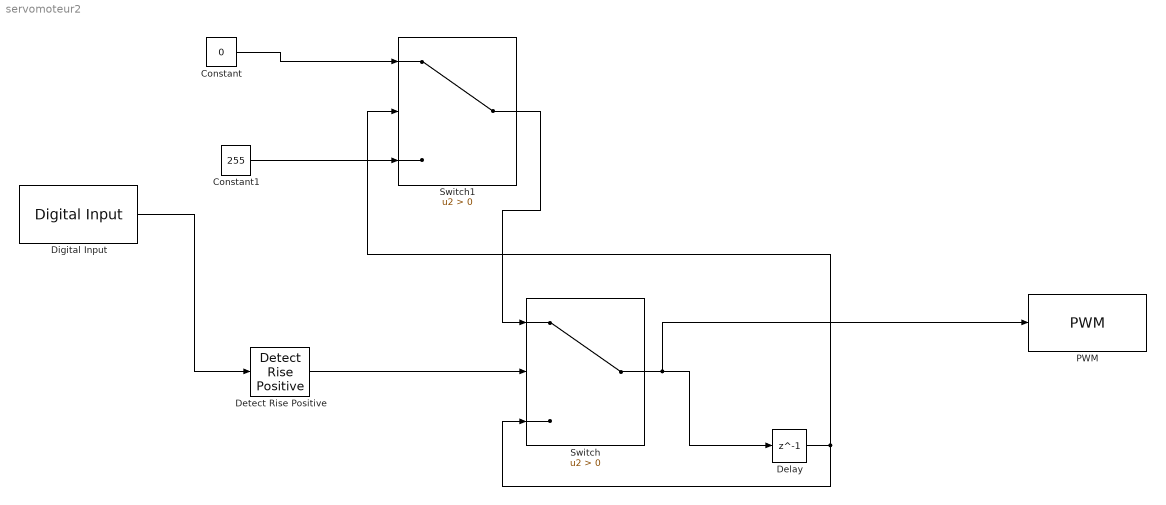
/*
 * File: servomoteur2.c
 *
 * Code generated for Simulink model 'servomoteur2'.
 *
 * Model version                  : 1.3
 * Simulink Coder version         : 9.3 (R2020a) 18-Nov-2019
 * C/C++ source code generated on : Tue Nov  7 11:24:21 2023
 *
 * Target selection: ert.tlc
 * Embedded hardware selection: Atmel->AVR
 * Code generation objectives: Unspecified
 * Validation result: Not run
 */

#include "servomoteur2.h"
#include "servomoteur2_private.h"

/* Block states (default storage) */
DW_servomoteur2_T servomoteur2_DW;

/* Real-time model */
RT_MODEL_servomoteur2_T servomoteur2_M_;
RT_MODEL_servomoteur2_T *const servomoteur2_M = &servomoteur2_M_;

/* Forward declaration for local functions */
static void matlabCodegenHandle_matlabCod_o(codertarget_arduinobase_block_T *obj);
static void servomoteur2_SystemCore_release(codertarget_arduinobase_inter_T *obj);
static void servomoteur2_SystemCore_delete(codertarget_arduinobase_inter_T *obj);
static void matlabCodegenHandle_matlabCodeg(codertarget_arduinobase_inter_T *obj);
static void arduino_PWMOutput_set_pinNumber(codertarget_arduinobase_inter_T *obj,
  j_codertarget_arduinobase_int_T *iobj_0);
static void rate_monotonic_scheduler(void);

/*
 * Set which subrates need to run this base step (base rate always runs).
 * This function must be called prior to calling the model step function
 * in order to "remember" which rates need to run this base step.  The
 * buffering of events allows for overlapping preemption.
 */
void servomoteur2_SetEventsForThisBaseStep(boolean_T *eventFlags)
{
  /* Task runs when its counter is zero, computed via rtmStepTask macro */
  eventFlags[1] = ((boolean_T)rtmStepTask(servomoteur2_M, 1));
}

/*
 *   This function updates active task flag for each subrate
 * and rate transition flags for tasks that exchange data.
 * The function assumes rate-monotonic multitasking scheduler.
 * The function must be called at model base rate so that
 * the generated code self-manages all its subrates and rate
 * transition flags.
 */
static void rate_monotonic_scheduler(void)
{
  /* Compute which subrates run during the next base time step.  Subrates
   * are an integer multiple of the base rate counter.  Therefore, the subtask
   * counter is reset when it reaches its limit (zero means run).
   */
  (servomoteur2_M->Timing.TaskCounters.TID[1])++;
  if ((servomoteur2_M->Timing.TaskCounters.TID[1]) > 9) {/* Sample time: [0.1s, 0.0s] */
    servomoteur2_M->Timing.TaskCounters.TID[1] = 0;
  }
}

static void matlabCodegenHandle_matlabCod_o(codertarget_arduinobase_block_T *obj)
{
  if (!obj->matlabCodegenIsDeleted) {
    obj->matlabCodegenIsDeleted = true;
  }
}

static void servomoteur2_SystemCore_release(codertarget_arduinobase_inter_T *obj)
{
  if ((obj->isInitialized == 1L) && obj->isSetupComplete) {
    obj->MW_PWM_HANDLE = MW_PWM_GetHandle(obj->PinPWM);
    MW_PWM_SetDutyCycle(obj->MW_PWM_HANDLE, 0.0);
    obj->MW_PWM_HANDLE = MW_PWM_GetHandle(obj->PinPWM);
    MW_PWM_Close(obj->MW_PWM_HANDLE);
  }
}

static void servomoteur2_SystemCore_delete(codertarget_arduinobase_inter_T *obj)
{
  servomoteur2_SystemCore_release(obj);
}

static void matlabCodegenHandle_matlabCodeg(codertarget_arduinobase_inter_T *obj)
{
  if (!obj->matlabCodegenIsDeleted) {
    obj->matlabCodegenIsDeleted = true;
    servomoteur2_SystemCore_delete(obj);
  }
}

static void arduino_PWMOutput_set_pinNumber(codertarget_arduinobase_inter_T *obj,
  j_codertarget_arduinobase_int_T *iobj_0)
{
  iobj_0->AvailablePwmPinNames.f1 = '2';
  iobj_0->AvailablePwmPinNames.f2 = '3';
  iobj_0->AvailablePwmPinNames.f3 = '4';
  iobj_0->AvailablePwmPinNames.f4 = '5';
  iobj_0->AvailablePwmPinNames.f5 = '6';
  iobj_0->AvailablePwmPinNames.f6 = '7';
  iobj_0->AvailablePwmPinNames.f7 = '8';
  iobj_0->AvailablePwmPinNames.f8 = '9';
  iobj_0->AvailablePwmPinNames.f9[0] = '1';
  iobj_0->AvailablePwmPinNames.f9[1] = '0';
  iobj_0->AvailablePwmPinNames.f10[0] = '1';
  iobj_0->AvailablePwmPinNames.f10[1] = '1';
  iobj_0->AvailablePwmPinNames.f11[0] = '1';
  iobj_0->AvailablePwmPinNames.f11[1] = '2';
  iobj_0->AvailablePwmPinNames.f12[0] = '1';
  iobj_0->AvailablePwmPinNames.f12[1] = '3';
  obj->Hw = iobj_0;
  obj->PinPWM = 5UL;
}

/* Model step function for TID0 */
void servomoteur2_step0(void)          /* Sample time: [0.01s, 0.0s] */
{
  {                                    /* Sample time: [0.01s, 0.0s] */
    rate_monotonic_scheduler();
  }
}

/* Model step function for TID1 */
void servomoteur2_step1(void)          /* Sample time: [0.1s, 0.0s] */
{
  codertarget_arduinobase_inter_T *obj;
  boolean_T rtb_Compare;
  real_T y;

  /* MATLABSystem: '<Root>/Digital Input' */
  if (servomoteur2_DW.obj_l.SampleTime != servomoteur2_P.DigitalInput_SampleTime)
  {
    servomoteur2_DW.obj_l.SampleTime = servomoteur2_P.DigitalInput_SampleTime;
  }

  rtb_Compare = readDigitalPin(4);

  /* RelationalOperator: '<S2>/Compare' incorporates:
   *  Constant: '<S2>/Constant'
   *  MATLABSystem: '<Root>/Digital Input'
   */
  rtb_Compare = ((int16_T)rtb_Compare > (int16_T)servomoteur2_P.Constant_Value_m);

  /* Switch: '<Root>/Switch' incorporates:
   *  RelationalOperator: '<S1>/FixPt Relational Operator'
   *  UnitDelay: '<S1>/Delay Input1'
   *
   * Block description for '<S1>/Delay Input1':
   *
   *  Store in Global RAM
   */
  if ((int16_T)rtb_Compare > (int16_T)servomoteur2_DW.DelayInput1_DSTATE) {
    /* Switch: '<Root>/Switch1' incorporates:
     *  Constant: '<Root>/Constant'
     *  Constant: '<Root>/Constant1'
     *  Delay: '<Root>/Delay'
     */
    if (servomoteur2_DW.Delay_DSTATE > servomoteur2_P.Switch1_Threshold) {
      servomoteur2_DW.Delay_DSTATE = servomoteur2_P.Constant_Value;
    } else {
      servomoteur2_DW.Delay_DSTATE = servomoteur2_P.Constant1_Value;
    }

    /* End of Switch: '<Root>/Switch1' */
  }

  /* End of Switch: '<Root>/Switch' */

  /* MATLABSystem: '<Root>/PWM' incorporates:
   *  Delay: '<Root>/Delay'
   */
  obj = &servomoteur2_DW.obj;
  obj->MW_PWM_HANDLE = MW_PWM_GetHandle(servomoteur2_DW.obj.PinPWM);
  if (servomoteur2_DW.Delay_DSTATE < 255.0) {
    y = servomoteur2_DW.Delay_DSTATE;
  } else {
    y = 255.0;
  }

  if (!(y > 0.0)) {
    y = 0.0;
  }

  MW_PWM_SetDutyCycle(servomoteur2_DW.obj.MW_PWM_HANDLE, y);

  /* End of MATLABSystem: '<Root>/PWM' */

  /* Update for UnitDelay: '<S1>/Delay Input1'
   *
   * Block description for '<S1>/Delay Input1':
   *
   *  Store in Global RAM
   */
  servomoteur2_DW.DelayInput1_DSTATE = rtb_Compare;
}
